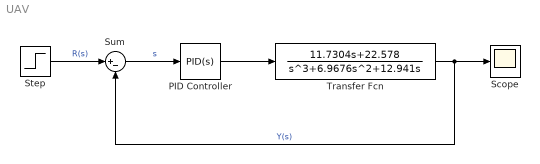
/*
 * UAV.cpp
 *
 * Academic License - for use in teaching, academic research, and meeting
 * course requirements at degree granting institutions only.  Not for
 * government, commercial, or other organizational use.
 *
 * Code generation for model "UAV".
 *
 * Model version              : 1.11
 * Simulink Coder version : 24.2 (R2024b) 21-Jun-2024
 * C++ source code generated on : Mon Mar 31 17:31:06 2025
 *
 * Target selection: grt.tlc
 * Note: GRT includes extra infrastructure and instrumentation for prototyping
 * Embedded hardware selection: Intel->x86-64 (Windows64)
 * Code generation objectives: Unspecified
 * Validation result: Not run
 */

#include "UAV.h"
#include "rtwtypes.h"
#include "UAV_private.h"

/*
 * This function updates continuous states using the ODE3 fixed-step
 * solver algorithm
 */
void UAV::rt_ertODEUpdateContinuousStates(RTWSolverInfo *si )
{
  /* Solver Matrices */
  static const real_T rt_ODE3_A[3]{
    1.0/2.0, 3.0/4.0, 1.0
  };

  static const real_T rt_ODE3_B[3][3]{
    { 1.0/2.0, 0.0, 0.0 },

    { 0.0, 3.0/4.0, 0.0 },

    { 2.0/9.0, 1.0/3.0, 4.0/9.0 }
  };

  time_T t { rtsiGetT(si) };

  time_T tnew { rtsiGetSolverStopTime(si) };

  time_T h { rtsiGetStepSize(si) };

  real_T *x { rtsiGetContStates(si) };

  ODE3_IntgData *id { static_cast<ODE3_IntgData *>(rtsiGetSolverData(si)) };

  real_T *y { id->y };

  real_T *f0 { id->f[0] };

  real_T *f1 { id->f[1] };

  real_T *f2 { id->f[2] };

  real_T hB[3];
  int_T i;
  int_T nXc { 5 };

  rtsiSetSimTimeStep(si,MINOR_TIME_STEP);

  /* Save the state values at time t in y, we'll use x as ynew. */
  (void) std::memcpy(y, x,
                     static_cast<uint_T>(nXc)*sizeof(real_T));

  /* Assumes that rtsiSetT and ModelOutputs are up-to-date */
  /* f0 = f(t,y) */
  rtsiSetdX(si, f0);
  UAV_derivatives();

  /* f(:,2) = feval(odefile, t + hA(1), y + f*hB(:,1), args(:)(*)); */
  hB[0] = h * rt_ODE3_B[0][0];
  for (i = 0; i < nXc; i++) {
    x[i] = y[i] + (f0[i]*hB[0]);
  }

  rtsiSetT(si, t + h*rt_ODE3_A[0]);
  rtsiSetdX(si, f1);
  this->step();
  UAV_derivatives();

  /* f(:,3) = feval(odefile, t + hA(2), y + f*hB(:,2), args(:)(*)); */
  for (i = 0; i <= 1; i++) {
    hB[i] = h * rt_ODE3_B[1][i];
  }

  for (i = 0; i < nXc; i++) {
    x[i] = y[i] + (f0[i]*hB[0] + f1[i]*hB[1]);
  }

  rtsiSetT(si, t + h*rt_ODE3_A[1]);
  rtsiSetdX(si, f2);
  this->step();
  UAV_derivatives();

  /* tnew = t + hA(3);
     ynew = y + f*hB(:,3); */
  for (i = 0; i <= 2; i++) {
    hB[i] = h * rt_ODE3_B[2][i];
  }

  for (i = 0; i < nXc; i++) {
    x[i] = y[i] + (f0[i]*hB[0] + f1[i]*hB[1] + f2[i]*hB[2]);
  }

  rtsiSetT(si, tnew);
  rtsiSetSimTimeStep(si,MAJOR_TIME_STEP);
}

/* Model step function */
void UAV::step()
{
  real_T rtb_s;
  if (rtmIsMajorTimeStep((&UAV_M))) {
    /* set solver stop time */
    if (!((&UAV_M)->Timing.clockTick0+1)) {
      rtsiSetSolverStopTime(&(&UAV_M)->solverInfo, (((&UAV_M)
        ->Timing.clockTickH0 + 1) * (&UAV_M)->Timing.stepSize0 * 4294967296.0));
    } else {
      rtsiSetSolverStopTime(&(&UAV_M)->solverInfo, (((&UAV_M)->Timing.clockTick0
        + 1) * (&UAV_M)->Timing.stepSize0 + (&UAV_M)->Timing.clockTickH0 *
        (&UAV_M)->Timing.stepSize0 * 4294967296.0));
    }
  }                                    /* end MajorTimeStep */

  /* Update absolute time of base rate at minor time step */
  if (rtmIsMinorTimeStep((&UAV_M))) {
    (&UAV_M)->Timing.t[0] = rtsiGetT(&(&UAV_M)->solverInfo);
  }

  /* TransferFcn: '<Root>/Transfer Fcn' */
  UAV_B.Ys = 0.0;
  UAV_B.Ys += UAV_P.TransferFcn_C[0] * UAV_X.TransferFcn_CSTATE[0];
  UAV_B.Ys += UAV_P.TransferFcn_C[1] * UAV_X.TransferFcn_CSTATE[1];
  UAV_B.Ys += UAV_P.TransferFcn_C[2] * UAV_X.TransferFcn_CSTATE[2];
  if (rtmIsMajorTimeStep((&UAV_M))) {
    /* Scope: '<Root>/Scope' */
    if (rtmIsMajorTimeStep((&UAV_M))) {
      real_T u[2];
      u[0] = ((((&UAV_M)->Timing.clockTick1+(&UAV_M)->Timing.clockTickH1*
                4294967296.0)) * 0.0001)
        ;
      u[1] = UAV_B.Ys;
      rt_UpdateLogVar((LogVar *)UAV_DW.Scope_PWORK.LoggedData, u, 0);
    }
  }

  /* Step: '<Root>/Step' */
  if ((&UAV_M)->Timing.t[0] < UAV_P.angle_change_start_time) {
    rtb_s = UAV_P.initial_angle;
  } else {
    rtb_s = UAV_P.final_angle;
  }

  /* Sum: '<Root>/Sum' incorporates:
   *  Step: '<Root>/Step'
   */
  rtb_s -= UAV_B.Ys;

  /* Gain: '<S33>/Integral Gain' */
  UAV_B.IntegralGain = UAV_P.Ki * rtb_s;

  /* Gain: '<S39>/Filter Coefficient' incorporates:
   *  Gain: '<S29>/Derivative Gain'
   *  Integrator: '<S31>/Filter'
   *  Sum: '<S31>/SumD'
   */
  UAV_B.FilterCoefficient = (UAV_P.Kd * rtb_s - UAV_X.Filter_CSTATE) *
    UAV_P.PIDController_N;

  /* Sum: '<S45>/Sum' incorporates:
   *  Gain: '<S41>/Proportional Gain'
   *  Integrator: '<S36>/Integrator'
   */
  UAV_B.Sum = (UAV_P.Kp * rtb_s + UAV_X.Integrator_CSTATE) +
    UAV_B.FilterCoefficient;
  if (rtmIsMajorTimeStep((&UAV_M))) {
    /* Matfile logging */
    rt_UpdateTXYLogVars((&UAV_M)->rtwLogInfo, ((&UAV_M)->Timing.t));
  }                                    /* end MajorTimeStep */

  if (rtmIsMajorTimeStep((&UAV_M))) {
    /* signal main to stop simulation */
    {                                  /* Sample time: [0.0s, 0.0s] */
      if ((rtmGetTFinal((&UAV_M))!=-1) &&
          !((rtmGetTFinal((&UAV_M))-((((&UAV_M)->Timing.clockTick1+(&UAV_M)
               ->Timing.clockTickH1* 4294967296.0)) * 0.0001)) > ((((&UAV_M)
              ->Timing.clockTick1+(&UAV_M)->Timing.clockTickH1* 4294967296.0)) *
            0.0001) * (DBL_EPSILON))) {
        rtmSetErrorStatus((&UAV_M), "Simulation finished");
      }
    }

    rt_ertODEUpdateContinuousStates(&(&UAV_M)->solverInfo);

    /* Update absolute time for base rate */
    /* The "clockTick0" counts the number of times the code of this task has
     * been executed. The absolute time is the multiplication of "clockTick0"
     * and "Timing.stepSize0". Size of "clockTick0" ensures timer will not
     * overflow during the application lifespan selected.
     * Timer of this task consists of two 32 bit unsigned integers.
     * The two integers represent the low bits Timing.clockTick0 and the high bits
     * Timing.clockTickH0. When the low bit overflows to 0, the high bits increment.
     */
    if (!(++(&UAV_M)->Timing.clockTick0)) {
      ++(&UAV_M)->Timing.clockTickH0;
    }

    (&UAV_M)->Timing.t[0] = rtsiGetSolverStopTime(&(&UAV_M)->solverInfo);

    {
      /* Update absolute timer for sample time: [0.0001s, 0.0s] */
      /* The "clockTick1" counts the number of times the code of this task has
       * been executed. The resolution of this integer timer is 0.0001, which is the step size
       * of the task. Size of "clockTick1" ensures timer will not overflow during the
       * application lifespan selected.
       * Timer of this task consists of two 32 bit unsigned integers.
       * The two integers represent the low bits Timing.clockTick1 and the high bits
       * Timing.clockTickH1. When the low bit overflows to 0, the high bits increment.
       */
      (&UAV_M)->Timing.clockTick1++;
      if (!(&UAV_M)->Timing.clockTick1) {
        (&UAV_M)->Timing.clockTickH1++;
      }
    }
  }                                    /* end MajorTimeStep */
}
